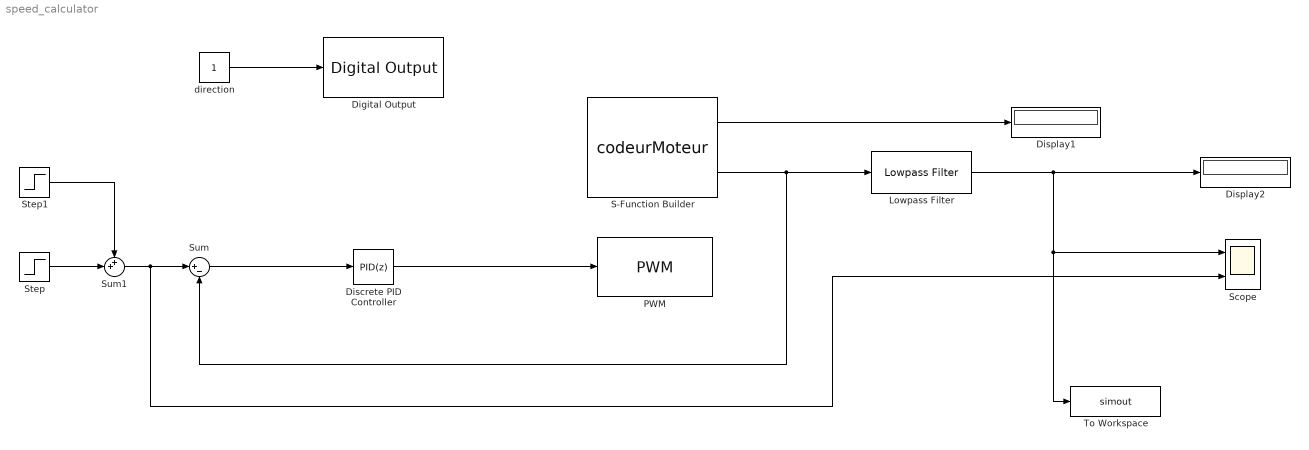
/*
 * File: speed_calculator.c
 *
 * Code generated for Simulink model 'speed_calculator'.
 *
 * Model version                  : 1.29
 * Simulink Coder version         : 9.5 (R2021a) 14-Nov-2020
 * C/C++ source code generated on : Tue May 23 12:30:53 2023
 *
 * Target selection: ert.tlc
 * Embedded hardware selection: Atmel->AVR
 * Code generation objectives: Unspecified
 * Validation result: Not run
 */

#include "speed_calculator.h"
#include "speed_calculator_private.h"

/* Block signals (default storage) */
B_speed_calculator_T speed_calculator_B;

/* Block states (default storage) */
DW_speed_calculator_T speed_calculator_DW;

/* Real-time model */
static RT_MODEL_speed_calculator_T speed_calculator_M_;
RT_MODEL_speed_calculator_T *const speed_calculator_M = &speed_calculator_M_;
real_T rt_roundd_snf(real_T u)
{
  real_T y;
  if (fabs(u) < 4.503599627370496E+15) {
    if (u >= 0.5) {
      y = floor(u + 0.5);
    } else if (u > -0.5) {
      y = u * 0.0;
    } else {
      y = ceil(u - 0.5);
    }
  } else {
    y = u;
  }

  return y;
}

/* Model step function */
void speed_calculator_step(void)
{
  b_dsp_FIRFilter_0_speed_calcu_T *obj_1;
  b_dspcodegen_FIRFilter_speed__T *obj_0;
  codertarget_arduinobase_inter_T *obj;
  real_T rtb_FilterCoefficient;
  real_T rtb_Sum_c;
  real_T u0;
  real_T zCurr;
  int16_T n;
  uint8_T tmp;

  /* MATLABSystem: '<Root>/Digital Output' incorporates:
   *  Constant: '<Root>/direction'
   */
  rtb_Sum_c = rt_roundd_snf(speed_calculator_P.direction_Value);
  if (rtb_Sum_c < 256.0) {
    if (rtb_Sum_c >= 0.0) {
      tmp = (uint8_T)rtb_Sum_c;
    } else {
      tmp = 0U;
    }
  } else {
    tmp = MAX_uint8_T;
  }

  writeDigitalPin(4, tmp);

  /* End of MATLABSystem: '<Root>/Digital Output' */

  /* S-Function (codeurMoteur): '<Root>/S-Function Builder' */
  codeurMoteur_Outputs_wrapper(&speed_calculator_B.SFunctionBuilder_o1,
    &speed_calculator_B.SFunctionBuilder_o2,
    &speed_calculator_DW.SFunctionBuilder_DSTATE);

  /* Step: '<Root>/Step1' incorporates:
   *  Step: '<Root>/Step'
   */
  rtb_Sum_c = ((speed_calculator_M->Timing.clockTick0) * 0.03);
  if (rtb_Sum_c < speed_calculator_P.Step1_Time) {
    rtb_FilterCoefficient = speed_calculator_P.Step1_Y0;
  } else {
    rtb_FilterCoefficient = speed_calculator_P.Step1_YFinal;
  }

  /* End of Step: '<Root>/Step1' */

  /* Step: '<Root>/Step' */
  if (rtb_Sum_c < speed_calculator_P.Step_Time) {
    rtb_Sum_c = speed_calculator_P.Step_Y0;
  } else {
    rtb_Sum_c = speed_calculator_P.Step_YFinal;
  }

  /* Sum: '<Root>/Sum' incorporates:
   *  Sum: '<Root>/Sum1'
   */
  rtb_Sum_c = (rtb_FilterCoefficient + rtb_Sum_c) -
    speed_calculator_B.SFunctionBuilder_o2;

  /* Gain: '<S36>/Filter Coefficient' incorporates:
   *  DiscreteIntegrator: '<S28>/Filter'
   *  Gain: '<S27>/Derivative Gain'
   *  Sum: '<S28>/SumD'
   */
  rtb_FilterCoefficient = (speed_calculator_P.DiscretePIDController_D *
    rtb_Sum_c - speed_calculator_DW.Filter_DSTATE) *
    speed_calculator_P.DiscretePIDController_N;

  /* MATLABSystem: '<Root>/PWM' */
  obj = &speed_calculator_DW.obj_l;
  obj->PWMDriverObj.MW_PWM_HANDLE = MW_PWM_GetHandle(6UL);

  /* Sum: '<S42>/Sum' incorporates:
   *  DiscreteIntegrator: '<S33>/Integrator'
   *  Gain: '<S38>/Proportional Gain'
   */
  u0 = (speed_calculator_P.DiscretePIDController_P * rtb_Sum_c +
        speed_calculator_DW.Integrator_DSTATE) + rtb_FilterCoefficient;

  /* MATLABSystem: '<Root>/PWM' */
  if (!(u0 < 255.0)) {
    u0 = 255.0;
  }

  if (!(u0 > 0.0)) {
    u0 = 0.0;
  }

  MW_PWM_SetDutyCycle(speed_calculator_DW.obj_l.PWMDriverObj.MW_PWM_HANDLE, u0);

  /* MATLABSystem: '<Root>/Lowpass Filter' */
  obj_0 = speed_calculator_DW.obj.FilterObj;
  if (obj_0->isInitialized != 1L) {
    obj_0->isSetupComplete = false;
    obj_0->isInitialized = 1L;
    obj_0->isSetupComplete = true;

    /* System object Initialization function: dsp.FIRFilter */
    for (n = 0; n < 50; n++) {
      obj_0->cSFunObject.W0_states[n] = obj_0->cSFunObject.P0_InitialStates;
    }
  }

  obj_1 = &obj_0->cSFunObject;

  /* System object Outputs function: dsp.FIRFilter */
  /* load input sample */
  u0 = speed_calculator_B.SFunctionBuilder_o2;
  for (n = 0; n < 50; n++) {
    /* shift state */
    zCurr = u0;
    u0 = obj_1->W0_states[(int32_T)n];
    obj_1->W0_states[(int32_T)n] = zCurr;

    /* compute one tap */
  }

  /* End of MATLABSystem: '<Root>/Lowpass Filter' */

  /* Update for S-Function (codeurMoteur): '<Root>/S-Function Builder' */
  /* compute last tap */
  /* store output sample */

  /* S-Function "codeurMoteur_wrapper" Block: <Root>/S-Function Builder */
  codeurMoteur_Update_wrapper(&speed_calculator_B.SFunctionBuilder_o1,
    &speed_calculator_B.SFunctionBuilder_o2,
    &speed_calculator_DW.SFunctionBuilder_DSTATE);

  /* Update for DiscreteIntegrator: '<S33>/Integrator' incorporates:
   *  Gain: '<S30>/Integral Gain'
   */
  speed_calculator_DW.Integrator_DSTATE +=
    speed_calculator_P.DiscretePIDController_I * rtb_Sum_c *
    speed_calculator_P.Integrator_gainval;

  /* Update for DiscreteIntegrator: '<S28>/Filter' */
  speed_calculator_DW.Filter_DSTATE += speed_calculator_P.Filter_gainval *
    rtb_FilterCoefficient;

  /* Update absolute time for base rate */
  /* The "clockTick0" counts the number of times the code of this task has
   * been executed. The resolution of this integer timer is 0.03, which is the step size
   * of the task. Size of "clockTick0" ensures timer will not overflow during the
   * application lifespan selected.
   */
  speed_calculator_M->Timing.clockTick0++;
}
